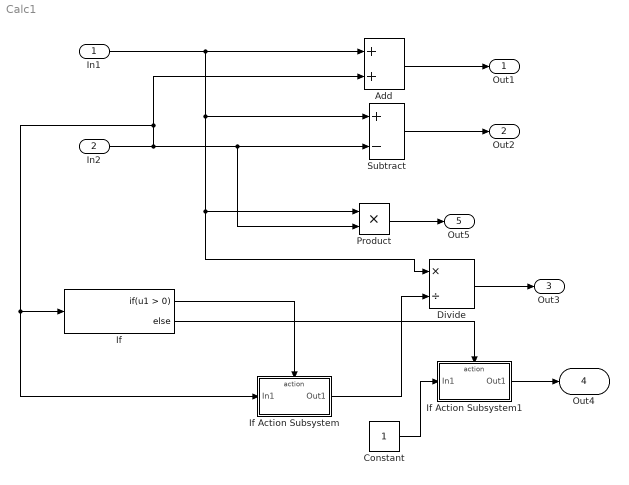
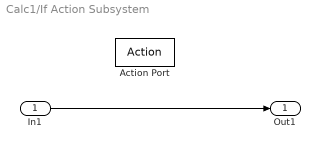
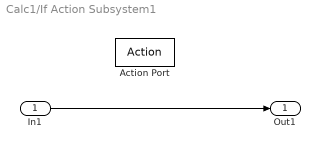
/*
 * File: Calc1.c
 *
 * Code generated for Simulink model 'Calc1'.
 *
 * Model version                  : 1.4
 * Simulink Coder version         : 9.0 (R2018b) 24-May-2018
 * C/C++ source code generated on : Wed Feb  2 17:12:01 2022
 *
 * Target selection: ert.tlc
 * Embedded hardware selection: Intel->x86-64 (Windows64)
 * Code generation objectives: Unspecified
 * Validation result: Not run
 */

#include "Calc1.h"
#include "Calc1_private.h"

/* Block signals (default storage) */
B_Calc1_T Calc1_B;

/* External inputs (root inport signals with default storage) */
ExtU_Calc1_T Calc1_U;

/* External outputs (root outports fed by signals with default storage) */
ExtY_Calc1_T Calc1_Y;

/* Real-time model */
RT_MODEL_Calc1_T Calc1_M_;
RT_MODEL_Calc1_T *const Calc1_M = &Calc1_M_;

/* Model step function */
void Calc1_step(void)
{
  /* Outport: '<Root>/Out1' incorporates:
   *  Inport: '<Root>/In1'
   *  Inport: '<Root>/In2'
   *  Sum: '<Root>/Add'
   */
  Calc1_Y.Out1 = Calc1_U.In1 + Calc1_U.In2;

  /* Outport: '<Root>/Out2' incorporates:
   *  Inport: '<Root>/In1'
   *  Inport: '<Root>/In2'
   *  Sum: '<Root>/Subtract'
   */
  Calc1_Y.Out2 = Calc1_U.In1 - Calc1_U.In2;

  /* If: '<Root>/If' incorporates:
   *  Inport: '<Root>/In2'
   *  Inport: '<S1>/In1'
   */
  if (Calc1_U.In2 > 0.0) {
    /* Outputs for IfAction SubSystem: '<Root>/If Action Subsystem' incorporates:
     *  ActionPort: '<S1>/Action Port'
     */
    Calc1_B.In1_f = Calc1_U.In2;

    /* End of Outputs for SubSystem: '<Root>/If Action Subsystem' */
  } else {
    /* Outputs for IfAction SubSystem: '<Root>/If Action Subsystem1' incorporates:
     *  ActionPort: '<S2>/Action Port'
     */
    /* Outport: '<Root>/Out4' incorporates:
     *  Constant: '<Root>/Constant'
     *  Inport: '<S2>/In1'
     */
    Calc1_Y.Out4 = 1.0;

    /* End of Outputs for SubSystem: '<Root>/If Action Subsystem1' */
  }

  /* End of If: '<Root>/If' */

  /* Outport: '<Root>/Out3' incorporates:
   *  Inport: '<Root>/In1'
   *  Product: '<Root>/Divide'
   */
  Calc1_Y.Out3 = Calc1_U.In1 / Calc1_B.In1_f;

  /* Outport: '<Root>/Out5' incorporates:
   *  Inport: '<Root>/In1'
   *  Inport: '<Root>/In2'
   *  Product: '<Root>/Product'
   */
  Calc1_Y.Out5 = Calc1_U.In1 * Calc1_U.In2;
}
